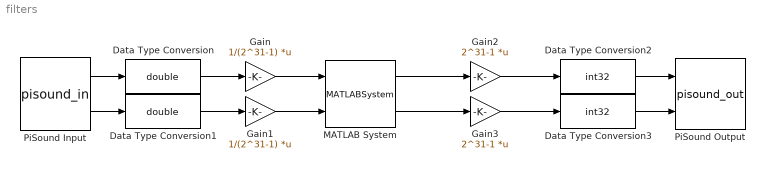
/*
 * Academic License - for use in teaching, academic research, and meeting
 * course requirements at degree granting institutions only.  Not for
 * government, commercial, or other organizational use.
 *
 * File: filters.c
 *
 * Code generated for Simulink model 'filters'.
 *
 * Model version                  : 1.21
 * Simulink Coder version         : 25.2 (R2025b) 28-Jul-2025
 * C/C++ source code generated on : Wed Mar  4 16:01:03 2026
 *
 * Target selection: ert.tlc
 * Embedded hardware selection: Generic->32-bit Embedded Processor
 * Code generation objectives: Unspecified
 * Validation result: Not run
 */

#include "filters.h"
#include "filters_types.h"
#include "rtwtypes.h"
#include <math.h>
#include "rt_nonfinite.h"
#include "filters_private.h"
#include <string.h>

/* Block signals (default storage) */
B_filters_T filters_B;

/* Block states (default storage) */
DW_filters_T filters_DW;

/* Real-time model */
static RT_MODEL_filters_T filters_M_;
RT_MODEL_filters_T *const filters_M = &filters_M_;

/* Forward declaration for local functions */
static void filter_filters_sys_updateCoeffs(filters_sys_filters_T *obj);
static void filters_filter(real_T b[3], real_T a[3], const real_T x[128], const
  real_T zi[2], real_T y[128], real_T zf[2]);
real_T rt_powd_snf(real_T u0, real_T u1)
{
  real_T y;
  if (rtIsNaN(u0) || rtIsNaN(u1)) {
    y = (rtNaN);
  } else {
    real_T tmp;
    real_T tmp_0;
    tmp = fabs(u0);
    tmp_0 = fabs(u1);
    if (rtIsInf(u1)) {
      if (tmp == 1.0) {
        y = 1.0;
      } else if (tmp > 1.0) {
        if (u1 > 0.0) {
          y = (rtInf);
        } else {
          y = 0.0;
        }
      } else if (u1 > 0.0) {
        y = 0.0;
      } else {
        y = (rtInf);
      }
    } else if (tmp_0 == 0.0) {
      y = 1.0;
    } else if (tmp_0 == 1.0) {
      if (u1 > 0.0) {
        y = u0;
      } else {
        y = 1.0 / u0;
      }
    } else if (u1 == 2.0) {
      y = u0 * u0;
    } else if ((u1 == 0.5) && (u0 >= 0.0)) {
      y = sqrt(u0);
    } else if ((u0 < 0.0) && (u1 > floor(u1))) {
      y = (rtNaN);
    } else {
      y = pow(u0, u1);
    }
  }

  return y;
}

static void filter_filters_sys_updateCoeffs(filters_sys_filters_T *obj)
{
  real_T G;
  real_T Q;
  real_T a0;
  real_T a0_tmp;
  real_T a0_tmp_0;
  real_T f;
  real_T p;
  real_T q;
  real_T sqrtA;
  real_T wc;
  int32_T t;

  /*  Sanitiza parámetros (evita NaN/inf y zonas problemáticas) */
  f = obj->Freq;
  Q = obj->Q;
  G = obj->Gain;
  t = obj->FilterType;

  /* Start for MATLABSystem: '<Root>/MATLAB System' */
  if (rtIsInf(obj->Freq) || rtIsNaN(obj->Freq)) {
    f = 1000.0;
  }

  if (rtIsInf(obj->Q) || rtIsNaN(obj->Q)) {
    Q = 0.707;
  }

  if (rtIsInf(obj->Gain) || rtIsNaN(obj->Gain)) {
    G = 0.0;
  }

  /*  límites prácticos */
  if (f < 0.1) {
    f = 0.1;
  }

  if (f > 23952.0) {
    f = 23952.0;
  }

  if (Q < 0.001) {
    Q = 0.001;
  }

  /* Start for MATLABSystem: '<Root>/MATLAB System' */
  /*  Pre-cálculos */
  wc = f / 48000.0 * 6.2831853071795862;

  /*  Coefs (sin normalizar) */
  obj->b[0] = 1.0;
  obj->a[0] = 1.0;
  obj->b[1] = 0.0;
  obj->a[1] = 0.0;
  obj->b[2] = 0.0;
  obj->a[2] = 0.0;
  if (obj->FilterType < 1) {
    t = 1;
  } else if (obj->FilterType > 7) {
    t = 7;
  }

  switch ((uint8_T)t) {
   case 1U:
    /* Start for MATLABSystem: '<Root>/MATLAB System' */
    /*  lowpass */
    /* Cálculo de los coefifientes de un Filtro Paso-Bajo de 2º orden */
    /* Parámetos de entrada:  */
    /* wo = frecuencia de corte a -3dB (en radianes) */
    /* Parametros de salida: */
    /* Coeficientes [b,a] de un filtro IIR de segundo orden */
    p = cos(wc);
    Q = 1.4142135623730951 * sin(wc);

    /* Normalización de coeficientes */
    /* fvtool(b,a); */
    f = (1.0 - p) / (Q + 2.0);
    obj->b[0] = f;
    obj->b[1] = (1.0 - p) * 2.0 / (Q + 2.0);
    obj->b[2] = f;

    /* Start for MATLABSystem: '<Root>/MATLAB System' */
    obj->a[0] = (Q + 2.0) / (Q + 2.0);
    obj->a[1] = -4.0 * p / (Q + 2.0);
    obj->a[2] = (2.0 - Q) / (Q + 2.0);
    break;

   case 2U:
    /* Start for MATLABSystem: '<Root>/MATLAB System' */
    /*  highpass */
    /* Cálculo de los coefifientes de un Filtro Paso-Alto de 2º orden */
    /* Parámetos de entrada:  */
    /* wo = frecuencia de corte a -3dB (en radianes) */
    /* Parametros de salida: */
    /* Coeficientes [b,a] de un filtro IIR de segundo orden */
    p = cos(wc);

    /*  Coeficientes del ecualizador */
    Q = 1.4142135623730951 * sin(wc);

    /* Normalización de coeficientes */
    /*  */
    /* fvtool(b,a); */
    f = (p + 1.0) / (Q + 2.0);
    obj->b[0] = f;
    obj->b[1] = (p + 1.0) * -2.0 / (Q + 2.0);
    obj->b[2] = f;

    /* Start for MATLABSystem: '<Root>/MATLAB System' */
    obj->a[0] = (Q + 2.0) / (Q + 2.0);
    obj->a[1] = -4.0 * p / (Q + 2.0);
    obj->a[2] = (2.0 - Q) / (Q + 2.0);
    break;

   case 3U:
    /* Start for MATLABSystem: '<Root>/MATLAB System' */
    /*  bandpass (0 dB peak) */
    /* Cálculo de los coefifientes de un Filtro Paso-Banda 2º orden */
    /* Parámetos de entrada:  */
    /* wo = frecuencia central (en radianes) */
    /* Q = factor de calidad */
    /*  */
    /* Parametros de salida: */
    /* Coeficientes [b,a] de un filtro IIR de segundo orden */
    G = sin(wc) / Q;

    /*  <-- Q aquí */
    /*  Coeficientes del ecualizador */
    /* Normalización de coeficientes */
    /* fvtool(b,a); */
    obj->b[0] = G / (G + 2.0);
    obj->b[1] = 0.0 / (G + 2.0);
    obj->b[2] = -G / (G + 2.0);
    obj->a[0] = (G + 2.0) / (G + 2.0);
    obj->a[1] = -4.0 * cos(wc) / (G + 2.0);
    obj->a[2] = (2.0 - G) / (G + 2.0);
    break;

   case 4U:
    /* Start for MATLABSystem: '<Root>/MATLAB System' */
    /*  bandreject / notch */
    /* Cálculo de los coefifientes de un Filtro Paso-Banda 2º orden */
    /* Parámetos de entrada:  */
    /* wo = frecuencia central (en radianes) */
    /* Q = factor de calidad */
    /*  */
    /* Parametros de salida: */
    /* Coeficientes [b,a] de un filtro IIR de segundo orden */
    /*  Coeficientes del ecualizador */
    G = sin(wc) / Q;

    /* Normalización de coeficientes */
    /* fvtool(b,a); */
    f = 2.0 / (G + 2.0);
    obj->b[0] = f;
    wc = -4.0 * cos(wc) / (G + 2.0);
    obj->b[1] = wc;
    obj->b[2] = f;

    /* Start for MATLABSystem: '<Root>/MATLAB System' */
    obj->a[0] = (G + 2.0) / (G + 2.0);
    obj->a[1] = wc;

    /* Start for MATLABSystem: '<Root>/MATLAB System' */
    obj->a[2] = (2.0 - G) / (G + 2.0);
    break;

   case 5U:
    /* Start for MATLABSystem: '<Root>/MATLAB System' */
    /*  lowshelf (RBJ, S=1) */
    /* Cálculo de los coefifientes de un Filtro Paso-Banda 2º orden */
    /* Parámetos de entrada:  */
    /* wo = frecuencia central (en radianes) */
    /* Q = factor de calidad */
    /*  */
    /* Parametros de salida: */
    /* Coeficientes [b,a] de un filtro IIR de segundo orden */
    G = rt_powd_snf(10.0, G / 40.0);
    sqrtA = sqrt(G);
    p = cos(wc);
    q = sin(wc);

    /*  Coeficientes del ecualizador */
    Q = 1.0 / G;

    /* Start for MATLABSystem: '<Root>/MATLAB System' */
    a0_tmp = (1.0 - Q) * p + (Q + 1.0);
    a0_tmp_0 = 1.4142135623730951 * q / sqrtA;
    a0 = a0_tmp + a0_tmp_0;

    /* Start for MATLABSystem: '<Root>/MATLAB System' */
    /* Normalización de coeficientes */
    /* fvtool(b,a); */
    f = (1.0 - G) * p + (G + 1.0);
    wc = 1.4142135623730951 * sqrtA * q;
    obj->b[0] = (f + wc) / a0;
    obj->b[1] = ((G + 1.0) * p + (1.0 - G)) * -2.0 / a0;
    obj->b[2] = (f - wc) / a0;
    obj->a[0] = a0 / a0;
    obj->a[1] = ((Q + 1.0) * p + (1.0 - Q)) * -2.0 / a0;
    obj->a[2] = (a0_tmp - a0_tmp_0) / a0;
    break;

   case 6U:
    /* Start for MATLABSystem: '<Root>/MATLAB System' */
    /*  highshelf (RBJ, S=1) */
    /* Cálculo de los coefifientes de un Filtro Paso-Banda 2º orden */
    /* Parámetos de entrada:  */
    /* wo = frecuencia central (en radianes) */
    /* Q = factor de calidad */
    /*  */
    /* Parametros de salida: */
    /* Coeficientes [b,a] de un filtro IIR de segundo orden */
    G = rt_powd_snf(10.0, G / 40.0);
    sqrtA = sqrt(G);
    p = cos(wc);
    q = sin(wc);

    /*  Coeficientes del ecualizador */
    Q = (1.0 - G) * p + (G + 1.0);
    a0_tmp = 1.4142135623730951 * sqrtA * q;
    a0 = Q + a0_tmp;

    /* Start for MATLABSystem: '<Root>/MATLAB System' */
    a0_tmp_0 = G * G;

    /* Normalización de coeficientes */
    /* fvtool(b,a); */
    f = 1.0 / G;
    wc = (1.0 - f) * p + (f + 1.0);
    sqrtA = 1.4142135623730951 * q / sqrtA;
    obj->b[0] = (wc + sqrtA) * a0_tmp_0 / a0;
    obj->b[1] = ((f + 1.0) * p + (1.0 - f)) * -2.0 * a0_tmp_0 / a0;
    obj->b[2] = (wc - sqrtA) * a0_tmp_0 / a0;
    obj->a[0] = a0 / a0;
    obj->a[1] = ((G + 1.0) * p + (1.0 - G)) * -2.0 / a0;
    obj->a[2] = (Q - a0_tmp) / a0;
    break;

   case 7U:
    /* Start for MATLABSystem: '<Root>/MATLAB System' */
    /*  centershelf / peaking (RBJ) */
    /* Cálculo de los coefifientes de un Filtro Paso-Banda 2º orden */
    /* Parámetos de entrada:  */
    /* wo = frecuencia central (en radianes) */
    /* Q = factor de calidad */
    /*  */
    /* Parametros de salida: */
    /* Coeficientes [b,a] de un filtro IIR de segundo orden */
    G = rt_powd_snf(10.0, G / 40.0);
    f = sin(wc) / (2.0 * Q);

    /*  Coeficientes del ecualizador */
    Q = f / G;

    /* Normalización de coeficientes */
    /* fvtool(b,a); */
    f *= G;
    obj->b[0] = (f + 1.0) / (Q + 1.0);
    wc = -2.0 * cos(wc) / (Q + 1.0);
    obj->b[1] = wc;
    obj->b[2] = (1.0 - f) / (Q + 1.0);
    obj->a[0] = (Q + 1.0) / (Q + 1.0);
    obj->a[1] = wc;

    /* Start for MATLABSystem: '<Root>/MATLAB System' */
    obj->a[2] = (1.0 - Q) / (Q + 1.0);
    break;
  }

  /*  Guarda "last" */
  obj->lastFilterType = obj->FilterType;
  obj->lastFreq = obj->Freq;
  obj->lastQ = obj->Q;
  obj->lastGain = obj->Gain;
}

static void filters_filter(real_T b[3], real_T a[3], const real_T x[128], const
  real_T zi[2], real_T y[128], real_T zf[2])
{
  int32_T b_j;
  int32_T e_k;
  int32_T naxpy;

  /* Start for MATLABSystem: '<Root>/MATLAB System' */
  if ((!rtIsInf(a[0])) && (!rtIsNaN(a[0])) && (!(a[0] == 0.0)) && (a[0] != 1.0))
  {
    b[0] /= a[0];
    b[1] /= a[0];
    b[2] /= a[0];
    a[1] /= a[0];
    a[2] /= a[0];
    a[0] = 1.0;
  }

  zf[0] = 0.0;
  y[0] = zi[0];
  zf[1] = 0.0;
  y[1] = zi[1];
  memset(&y[2], 0, 126U * sizeof(real_T));
  for (e_k = 0; e_k < 128; e_k++) {
    real_T as;
    int32_T y_tmp;

    /* Start for MATLABSystem: '<Root>/MATLAB System' */
    if (128 - e_k <= 3) {
      naxpy = 128 - e_k;
    } else {
      naxpy = 3;
    }

    for (b_j = 0; b_j < naxpy; b_j++) {
      y_tmp = e_k + b_j;

      /* Start for MATLABSystem: '<Root>/MATLAB System' */
      y[y_tmp] += x[e_k] * b[b_j];
    }

    /* Start for MATLABSystem: '<Root>/MATLAB System' */
    if (127 - e_k <= 2) {
      naxpy = 127 - e_k;
    } else {
      naxpy = 2;
    }

    as = -y[e_k];
    for (b_j = 0; b_j < naxpy; b_j++) {
      y_tmp = (b_j + e_k) + 1;
      y[y_tmp] += a[b_j + 1] * as;
    }
  }

  for (e_k = 0; e_k < 2; e_k++) {
    for (naxpy = 0; naxpy <= e_k; naxpy++) {
      /* Start for MATLABSystem: '<Root>/MATLAB System' */
      zf[naxpy] += b[(naxpy - e_k) + 2] * x[e_k + 126];
    }
  }

  for (e_k = 0; e_k < 2; e_k++) {
    for (naxpy = 0; naxpy <= e_k; naxpy++) {
      /* Start for MATLABSystem: '<Root>/MATLAB System' */
      zf[naxpy] += a[(naxpy - e_k) + 2] * -y[e_k + 126];
    }
  }
}

/* Model step function */
void filters_step(void)
{
  real_T rtb_MATLABSystem_o1_0[128];
  real_T tmp[128];
  real_T tmp_2[3];
  real_T tmp_3[3];
  real_T tmp_1[2];
  real_T tmp_0;
  int32_T i;

  /* S-Function (pisound_in): '<Root>/PiSound Input' */

  /* Level2 S-Function Block: '<Root>/PiSound Input' (pisound_in) */
  {
    SimStruct *rts = filters_M->childSfunctions[0];
    sfcnOutputs(rts,0);
  }

  /* MATLABSystem: '<Root>/MATLAB System' */
  if (filters_DW.obj.FilterType != filters_P.FilterType_rt) {
    filters_DW.obj.FilterType = filters_P.FilterType_rt;
  }

  if (filters_DW.obj.Freq != filters_P.Freq_rt) {
    filters_DW.obj.Freq = filters_P.Freq_rt;
  }

  if (filters_DW.obj.Q != filters_P.Q_rt) {
    filters_DW.obj.Q = filters_P.Q_rt;
  }

  if (filters_DW.obj.Gain != filters_P.Gain_rt) {
    filters_DW.obj.Gain = filters_P.Gain_rt;
  }

  /*  Recalcular coefs si cambió algún parámetro */
  if ((filters_DW.obj.FilterType != filters_DW.obj.lastFilterType) ||
      (filters_DW.obj.Freq != filters_DW.obj.lastFreq) || (filters_DW.obj.Q !=
       filters_DW.obj.lastQ) || (filters_DW.obj.Gain != filters_DW.obj.lastGain))
  {
    filter_filters_sys_updateCoeffs(&filters_DW.obj);
  }

  /* Gain: '<Root>/Gain' incorporates:
   *  DataTypeConversion: '<Root>/Data Type Conversion'
   */
  /*  ---- Canal L (idx=1) */
  for (i = 0; i < 128; i++) {
    tmp[i] = filters_P.Gain_Gain * (real_T)filters_B.PiSoundInput_o1[i];
  }

  /* End of Gain: '<Root>/Gain' */

  /* MATLABSystem: '<Root>/MATLAB System' */
  for (i = 0; i < 2; i++) {
    tmp_1[i] = filters_DW.obj.zL[i];
  }

  for (i = 0; i < 3; i++) {
    tmp_2[i] = filters_DW.obj.b[i];
  }

  for (i = 0; i < 3; i++) {
    tmp_3[i] = filters_DW.obj.a[i];
  }

  filters_filter(tmp_2, tmp_3, tmp, tmp_1, rtb_MATLABSystem_o1_0,
                 filters_DW.obj.zL);

  /*  ---- Canal R (idx=2) */
  for (i = 0; i < 128; i++) {
    /* Gain: '<Root>/Gain1' incorporates:
     *  DataTypeConversion: '<Root>/Data Type Conversion1'
     */
    tmp[i] = filters_P.Gain1_Gain * (real_T)filters_B.PiSoundInput_o2[i];

    /* DataTypeConversion: '<Root>/Data Type Conversion2' incorporates:
     *  Gain: '<Root>/Gain2'
     *  MATLABSystem: '<Root>/MATLAB System'
     */
    tmp_0 = floor(filters_P.Gain2_Gain * rtb_MATLABSystem_o1_0[i]);
    if (rtIsNaN(tmp_0) || rtIsInf(tmp_0)) {
      tmp_0 = 0.0;
    } else {
      tmp_0 = fmod(tmp_0, 4.294967296E+9);
    }

    /* DataTypeConversion: '<Root>/Data Type Conversion2' */
    filters_B.DataTypeConversion2[i] = tmp_0 < 0.0 ? -(int32_T)(uint32_T)-tmp_0 :
      (int32_T)(uint32_T)tmp_0;
  }

  /* MATLABSystem: '<Root>/MATLAB System' */
  for (i = 0; i < 2; i++) {
    tmp_1[i] = filters_DW.obj.zR[i];
  }

  for (i = 0; i < 3; i++) {
    tmp_2[i] = filters_DW.obj.b[i];
  }

  for (i = 0; i < 3; i++) {
    tmp_3[i] = filters_DW.obj.a[i];
  }

  filters_filter(tmp_2, tmp_3, tmp, tmp_1, rtb_MATLABSystem_o1_0,
                 filters_DW.obj.zR);
  for (i = 0; i < 128; i++) {
    /* DataTypeConversion: '<Root>/Data Type Conversion3' incorporates:
     *  Gain: '<Root>/Gain3'
     *  MATLABSystem: '<Root>/MATLAB System'
     */
    tmp_0 = floor(filters_P.Gain3_Gain * rtb_MATLABSystem_o1_0[i]);
    if (rtIsNaN(tmp_0) || rtIsInf(tmp_0)) {
      tmp_0 = 0.0;
    } else {
      tmp_0 = fmod(tmp_0, 4.294967296E+9);
    }

    /* DataTypeConversion: '<Root>/Data Type Conversion3' */
    filters_B.DataTypeConversion3[i] = tmp_0 < 0.0 ? -(int32_T)(uint32_T)-tmp_0 :
      (int32_T)(uint32_T)tmp_0;
  }

  /* S-Function (pisound_out): '<Root>/PiSound Output' */

  /* Level2 S-Function Block: '<Root>/PiSound Output' (pisound_out) */
  {
    SimStruct *rts = filters_M->childSfunctions[1];
    sfcnOutputs(rts,0);
  }

  /* Update absolute time for base rate */
  /* The "clockTick0" counts the number of times the code of this task has
   * been executed. The absolute time is the multiplication of "clockTick0"
   * and "Timing.stepSize0". Size of "clockTick0" ensures timer will not
   * overflow during the application lifespan selected.
   */
  filters_M->Timing.t[0] =
    ((time_T)(++filters_M->Timing.clockTick0)) * filters_M->Timing.stepSize0;
}
